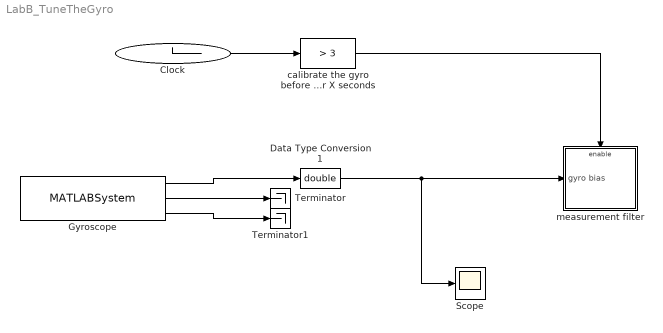
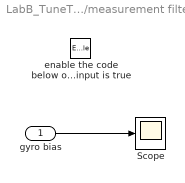
/*
 * Academic License - for use in teaching, academic research, and meeting
 * course requirements at degree granting institutions only.  Not for
 * government, commercial, or other organizational use.
 *
 * File: LabB_TuneTheGyro.c
 *
 * Code generated for Simulink model 'LabB_TuneTheGyro'.
 *
 * Model version                  : 7.0
 * Simulink Coder version         : 9.9 (R2023a) 19-Nov-2022
 * C/C++ source code generated on : Sat Jan  6 10:47:49 2024
 *
 * Target selection: ert.tlc
 * Embedded hardware selection: Atmel->AVR
 * Code generation objectives: Unspecified
 * Validation result: Not run
 */

#include "LabB_TuneTheGyro.h"
#include "rtwtypes.h"
#include "LabB_TuneTheGyro_private.h"
#include <string.h>

/* Block signals (default storage) */
BlockIO_LabB_TuneTheGyro LabB_TuneTheGyro_B;

/* Block states (default storage) */
D_Work_LabB_TuneTheGyro LabB_TuneTheGyro_DWork;

/* Real-time model */
static RT_MODEL_LabB_TuneTheGyro LabB_TuneTheGyro_M_;
RT_MODEL_LabB_TuneTheGyro *const LabB_TuneTheGyro_M = &LabB_TuneTheGyro_M_;

/* Model step function */
void LabB_TuneTheGyro_step(void)
{
  int16_T out[3];

  /* Reset subsysRan breadcrumbs */
  srClearBC(LabB_TuneTheGyro_DWork.measurementfilter_SubsysRanBC);

  /* MATLABSystem: '<Root>/Gyroscope' */
  /*  initialize output to a single (float) with the value zero */
  /* 'soMPU6050Gyro:59' out = int16(zeros(3,1)); */
  /* 'soMPU6050Gyro:60' if coder.target('Rtw') */
  /*  done only for code gen */
  /* 'soMPU6050Gyro:61' coder.cinclude('MPU6050wrapper.h'); */
  /*  get the current value of the sensor */
  /* 'soMPU6050Gyro:63' coder.ceval('MPU6050Gyro_Read', coder.wref(out)); */
  MPU6050Gyro_Read(&out[0]);

  /* DataTypeConversion: '<Root>/Data Type  Conversion1' incorporates:
   *  MATLABSystem: '<Root>/Gyroscope'
   */
  /*  pull the data appart */
  /* 'soMPU6050Gyro:68' xvel = out(1); */
  /* 'soMPU6050Gyro:69' yvel = out(2); */
  /* 'soMPU6050Gyro:70' zvel = out(3); */
  LabB_TuneTheGyro_B.DataTypeConversion1 = out[0];

  /* Outputs for Enabled SubSystem: '<Root>/measurement filter' incorporates:
   *  EnablePort: '<S2>/enable the code below only when the external boolean input is true '
   */
  /* RelationalOperator: '<S1>/Compare' incorporates:
   *  Clock: '<Root>/Clock'
   *  Constant: '<S1>/Constant'
   */
  if (LabB_TuneTheGyro_M->Timing.t[0] >
      LabB_TuneTheGyro_P.calibratethegyrobeforeXsecondss) {
    srUpdateBC(LabB_TuneTheGyro_DWork.measurementfilter_SubsysRanBC);
  }

  /* End of RelationalOperator: '<S1>/Compare' */
  /* End of Outputs for SubSystem: '<Root>/measurement filter' */
  {                                    /* Sample time: [0.0s, 0.0s] */
    extmodeErrorCode_T errorCode = EXTMODE_SUCCESS;
    extmodeSimulationTime_T currentTime = (extmodeSimulationTime_T)
      ((LabB_TuneTheGyro_M->Timing.clockTick0 * 1) + 0)
      ;

    /* Trigger External Mode event */
    errorCode = extmodeEvent(0,currentTime);
    if (errorCode != EXTMODE_SUCCESS) {
      /* Code to handle External Mode event errors
         may be added here */
    }
  }

  {                                    /* Sample time: [0.01s, 0.0s] */
    extmodeErrorCode_T errorCode = EXTMODE_SUCCESS;
    extmodeSimulationTime_T currentTime = (extmodeSimulationTime_T)
      ((LabB_TuneTheGyro_M->Timing.clockTick1 * 1) + 0)
      ;

    /* Trigger External Mode event */
    errorCode = extmodeEvent(1,currentTime);
    if (errorCode != EXTMODE_SUCCESS) {
      /* Code to handle External Mode event errors
         may be added here */
    }
  }

  /* Update absolute time for base rate */
  /* The "clockTick0" counts the number of times the code of this task has
   * been executed. The absolute time is the multiplication of "clockTick0"
   * and "Timing.stepSize0". Size of "clockTick0" ensures timer will not
   * overflow during the application lifespan selected.
   */
  LabB_TuneTheGyro_M->Timing.t[0] =
    ((time_T)(++LabB_TuneTheGyro_M->Timing.clockTick0)) *
    LabB_TuneTheGyro_M->Timing.stepSize0;

  {
    /* Update absolute timer for sample time: [0.01s, 0.0s] */
    /* The "clockTick1" counts the number of times the code of this task has
     * been executed. The resolution of this integer timer is 0.01, which is the step size
     * of the task. Size of "clockTick1" ensures timer will not overflow during the
     * application lifespan selected.
     */
    LabB_TuneTheGyro_M->Timing.clockTick1++;
  }
}
